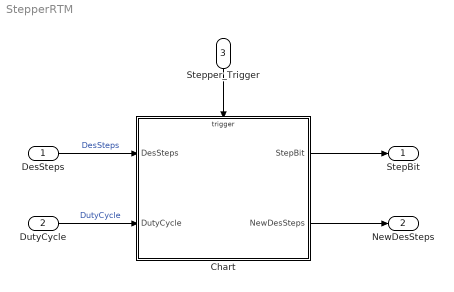
== stateflow chart StepperRTM/Chart ==
  state Reset
    en: StepBit = 0;
  state Main
    state Idle
      en: StepBit = 0;
    state High
      en: StepBit = 1;
    (default) -> Idle
    Idle -> High : [DesSteps > 0 && after(DutyCycle, Takt)]{NewDesSteps = DesSteps;}
    High -> Idle : [after(DutyCycle,Takt)]{NewDesSteps = (DesSteps - 1);}
  (default) -> Reset
  Reset -> Main : POR
  data: StepBit output uint16; DesSteps input uint16 =0; NewDesSteps output uint16 =0; DutyCycle input uint16
  events: Takt input EITHER_EDGE_EVENT; POR input RISING_EDGE_EVENT

/*
 * Academic License - for use in teaching, academic research, and meeting
 * course requirements at degree granting institutions only.  Not for
 * government, commercial, or other organizational use.
 *
 * File: StepperRTM.c
 *
 * Code generated for Simulink model 'StepperRTM'.
 *
 * Model version                  : 2.134
 * Simulink Coder version         : 9.5 (R2021a) 14-Nov-2020
 * C/C++ source code generated on : Sun Oct 31 01:09:30 2021
 *
 * Target selection: ert.tlc
 * Embedded hardware selection: Texas Instruments->C2000
 * Code generation objective: Execution efficiency
 * Validation result: Not run
 */

#include "StepperRTM.h"
#include "StepperRTM_private.h"

/* Named constants for Chart: '<Root>/Chart' */
#define StepperRTM_event_POR           (1L)
#define StepperRTM_event_Takt          (0L)
#define StepperRTM_IN_High             (1U)
#define StepperRTM_IN_Idle             (2U)
#define StepperRTM_IN_Main             (1U)
#define StepperRTM_IN_NO_ACTIVE_CHILD  (0U)
#define StepperRTM_IN_Reset            (2U)

/* Block signals (default storage) */
B_StepperRTM_T StepperRTM_B;

/* Block states (default storage) */
DW_StepperRTM_T StepperRTM_DW;

/* Previous zero-crossings (trigger) states */
PrevZCX_StepperRTM_T StepperRTM_PrevZCX;

/* External inputs (root inport signals with default storage) */
ExtU_StepperRTM_T StepperRTM_U;

/* Forward declaration for local functions */
static void Stepper_chartstep_c3_StepperRTM(const int32_T *sfEvent);

/* Function for Chart: '<Root>/Chart' */
static void Stepper_chartstep_c3_StepperRTM(const int32_T *sfEvent)
{
  /* Chart: '<Root>/Chart' incorporates:
   *  Inport: '<Root>/DesSteps'
   *  Inport: '<Root>/DutyCycle'
   */
  /* During: Chart */
  if (StepperRTM_DW.is_active_c3_StepperRTM == 0U) {
    /* Entry: Chart */
    StepperRTM_DW.is_active_c3_StepperRTM = 1U;

    /* Entry Internal: Chart */
    /* Transition: '<S1>:12' */
    StepperRTM_DW.is_c3_StepperRTM = StepperRTM_IN_Reset;

    /* Entry 'Reset': '<S1>:10' */
    StepperRTM_B.StepBit = 0U;
  } else if (StepperRTM_DW.is_c3_StepperRTM == 1U) {
    /* During 'Main': '<S1>:4' */
    if (StepperRTM_DW.is_Main == 1U) {
      StepperRTM_B.StepBit = 1U;

      /* During 'High': '<S1>:162' */
      if (StepperRTM_DW.temporalCounter_i1 >= StepperRTM_U.DutyCycle) {
        /* Transition: '<S1>:166' */
        StepperRTM_B.NewDesSteps = StepperRTM_U.DesSteps - /*MW:OvSatOk*/ 1U;
        if (StepperRTM_U.DesSteps - 1U > StepperRTM_U.DesSteps) {
          StepperRTM_B.NewDesSteps = 0U;
        }

        StepperRTM_DW.is_Main = StepperRTM_IN_Idle;
        StepperRTM_DW.temporalCounter_i1 = 0U;

        /* Entry 'Idle': '<S1>:23' */
        StepperRTM_B.StepBit = 0U;
      }
    } else {
      StepperRTM_B.StepBit = 0U;

      /* During 'Idle': '<S1>:23' */
      if ((StepperRTM_U.DesSteps > 0U) && (StepperRTM_DW.temporalCounter_i1 >=
           StepperRTM_U.DutyCycle)) {
        /* Transition: '<S1>:153' */
        StepperRTM_B.NewDesSteps = StepperRTM_U.DesSteps;
        StepperRTM_DW.is_Main = StepperRTM_IN_High;
        StepperRTM_DW.temporalCounter_i1 = 0U;

        /* Entry 'High': '<S1>:162' */
        StepperRTM_B.StepBit = 1U;
      }
    }
  } else {
    StepperRTM_B.StepBit = 0U;

    /* During 'Reset': '<S1>:10' */
    if (*sfEvent == StepperRTM_event_POR) {
      /* Transition: '<S1>:11' */
      StepperRTM_DW.is_c3_StepperRTM = StepperRTM_IN_Main;

      /* Entry Internal 'Main': '<S1>:4' */
      /* Transition: '<S1>:24' */
      StepperRTM_DW.is_Main = StepperRTM_IN_Idle;
      StepperRTM_DW.temporalCounter_i1 = 0U;

      /* Entry 'Idle': '<S1>:23' */
      StepperRTM_B.StepBit = 0U;
    }
  }

  /* End of Chart: '<Root>/Chart' */
}

/* Model step function */
void StepperRTM_step(uint16_T arg_DesSteps, uint16_T arg_DutyCycle, uint16_T
                     arg_Stepper_Trigger[2], uint16_T *arg_StepBit, uint16_T
                     *arg_NewDesSteps)
{
  int32_T sfEvent;
  int16_T tmp;
  int16_T tmp_0;
  boolean_T zcEvent;
  boolean_T zcEvent_idx_0;

  /* Copy value for root inport '<Root>/DesSteps' since it is accessed globally */
  StepperRTM_U.DesSteps = arg_DesSteps;

  /* Copy value for root inport '<Root>/DutyCycle' since it is accessed globally */
  StepperRTM_U.DutyCycle = arg_DutyCycle;

  /* Chart: '<Root>/Chart' incorporates:
   *  TriggerPort: '<S1>/input events'
   */
  /* Inport: '<Root>/Stepper_Trigger' */
  zcEvent_idx_0 = (((arg_Stepper_Trigger[0] > 0U) !=
                    (StepperRTM_PrevZCX.Chart_Trig_ZCE[0] == POS_ZCSIG)) &&
                   (StepperRTM_PrevZCX.Chart_Trig_ZCE[0] != UNINITIALIZED_ZCSIG));
  zcEvent = (((arg_Stepper_Trigger[1] > 0U) !=
              (StepperRTM_PrevZCX.Chart_Trig_ZCE[1] == POS_ZCSIG)) &&
             (StepperRTM_PrevZCX.Chart_Trig_ZCE[1] != UNINITIALIZED_ZCSIG));
  if (zcEvent_idx_0 || zcEvent) {
    /* Inport: '<Root>/Stepper_Trigger' */
    tmp_0 = (int16_T)(zcEvent_idx_0 ? (int16_T)arg_Stepper_Trigger[0] > 0 ?
                      RISING_ZCEVENT : FALLING_ZCEVENT : NO_ZCEVENT);
    tmp = (int16_T)(zcEvent ? (int16_T)arg_Stepper_Trigger[1] > 0 ?
                    RISING_ZCEVENT : FALLING_ZCEVENT : NO_ZCEVENT);

    /* Gateway: Chart */
    if (((tmp_0 & 128U) != 0U ? tmp_0 | -128 : tmp_0 & 127) != 0) {
      if (StepperRTM_DW.temporalCounter_i1 < MAX_uint16_T) {
        StepperRTM_DW.temporalCounter_i1++;
      }

      /* Event: '<S1>:14' */
      sfEvent = StepperRTM_event_Takt;
      Stepper_chartstep_c3_StepperRTM(&sfEvent);
    }

    if (((tmp & 128U) != 0U ? tmp | -128 : tmp & 127) == 1) {
      /* Event: '<S1>:13' */
      sfEvent = StepperRTM_event_POR;
      Stepper_chartstep_c3_StepperRTM(&sfEvent);
    }
  }

  /* Inport: '<Root>/Stepper_Trigger' */
  StepperRTM_PrevZCX.Chart_Trig_ZCE[0] = (ZCSigState)(arg_Stepper_Trigger[0] >
    0U);
  StepperRTM_PrevZCX.Chart_Trig_ZCE[1] = (ZCSigState)(arg_Stepper_Trigger[1] >
    0U);

  /* Outport: '<Root>/StepBit' */
  *arg_StepBit = StepperRTM_B.StepBit;

  /* Outport: '<Root>/NewDesSteps' */
  *arg_NewDesSteps = StepperRTM_B.NewDesSteps;
}
